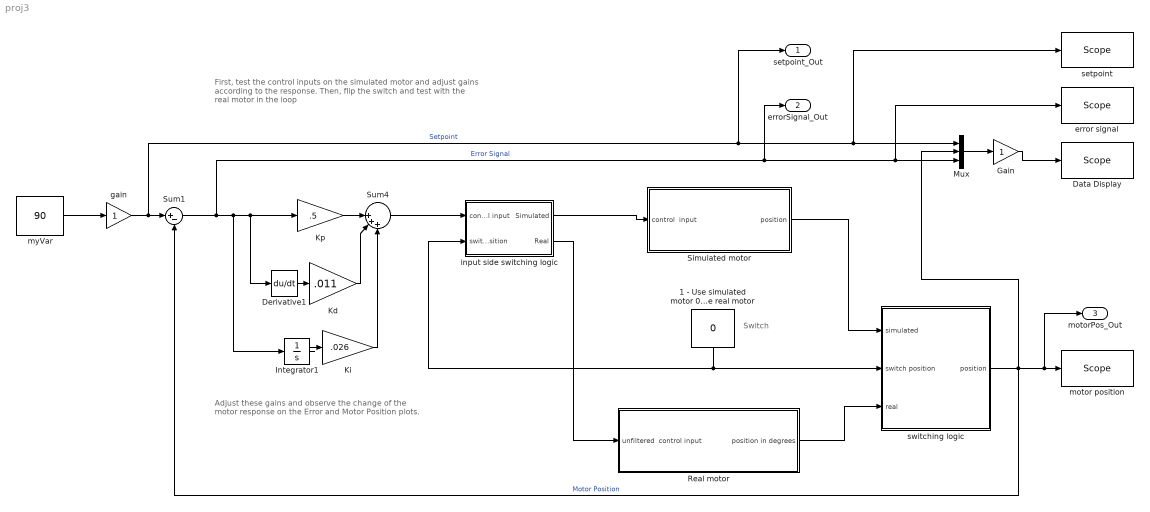
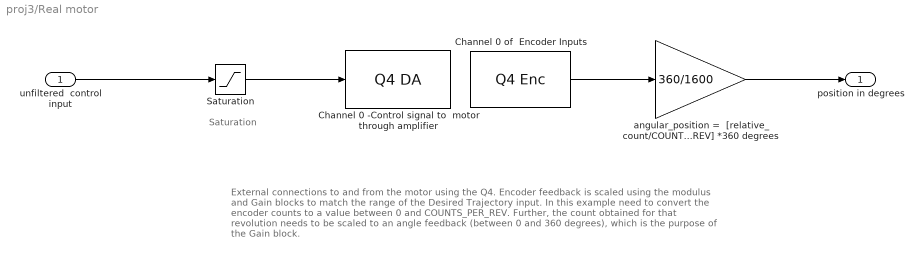
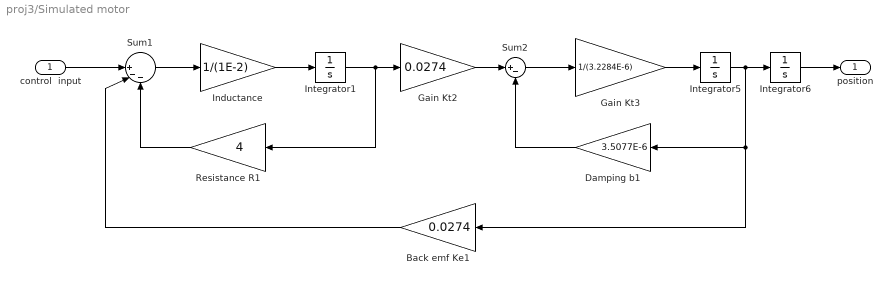
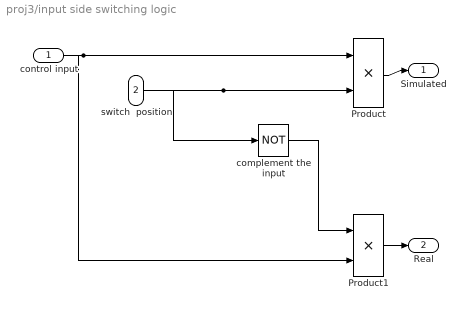
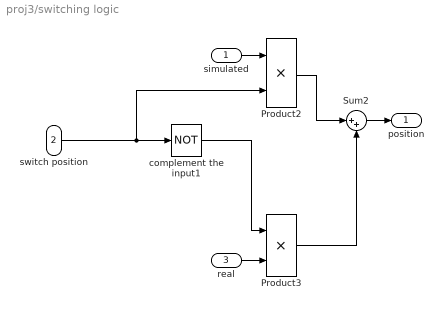
/*
 * proj3.c
 *
 * Academic Student License -- for use by students to meet course
 * requirements and perform academic research at degree granting
 * institutions only.  Not for government, commercial, or other
 * organizational use.
 *
 * Code generation for model "proj3".
 *
 * Model version              : 1.93
 * Simulink Coder version : 8.13 (R2017b) 24-Jul-2017
 * C source code generated on : Wed Oct 17 16:12:25 2018
 *
 * Target selection: slrt.tlc
 * Note: GRT includes extra infrastructure and instrumentation for prototyping
 * Embedded hardware selection: Generic->32-bit x86 compatible
 * Code generation objectives: Unspecified
 * Validation result: Not run
 */

#include "rt_logging_mmi.h"
#include "proj3_capi.h"
#include "proj3.h"
#include "proj3_private.h"

/* Block signals (auto storage) */
B_proj3_T proj3_B;

/* Continuous states */
X_proj3_T proj3_X;

/* Block states (auto storage) */
DW_proj3_T proj3_DW;

/* External outputs (root outports fed by signals with auto storage) */
ExtY_proj3_T proj3_Y;

/* Real-time model */
RT_MODEL_proj3_T proj3_M_;
RT_MODEL_proj3_T *const proj3_M = &proj3_M_;

/*
 * This function updates continuous states using the ODE3 fixed-step
 * solver algorithm
 */
static void rt_ertODEUpdateContinuousStates(RTWSolverInfo *si )
{
  /* Solver Matrices */
  static const real_T rt_ODE3_A[3] = {
    1.0/2.0, 3.0/4.0, 1.0
  };

  static const real_T rt_ODE3_B[3][3] = {
    { 1.0/2.0, 0.0, 0.0 },

    { 0.0, 3.0/4.0, 0.0 },

    { 2.0/9.0, 1.0/3.0, 4.0/9.0 }
  };

  time_T t = rtsiGetT(si);
  time_T tnew = rtsiGetSolverStopTime(si);
  time_T h = rtsiGetStepSize(si);
  real_T *x = rtsiGetContStates(si);
  ODE3_IntgData *id = (ODE3_IntgData *)rtsiGetSolverData(si);
  real_T *y = id->y;
  real_T *f0 = id->f[0];
  real_T *f1 = id->f[1];
  real_T *f2 = id->f[2];
  real_T hB[3];
  int_T i;
  int_T nXc = 4;
  rtsiSetSimTimeStep(si,MINOR_TIME_STEP);

  /* Save the state values at time t in y, we'll use x as ynew. */
  (void) memcpy(y, x,
                (uint_T)nXc*sizeof(real_T));

  /* Assumes that rtsiSetT and ModelOutputs are up-to-date */
  /* f0 = f(t,y) */
  rtsiSetdX(si, f0);
  proj3_derivatives();

  /* f(:,2) = feval(odefile, t + hA(1), y + f*hB(:,1), args(:)(*)); */
  hB[0] = h * rt_ODE3_B[0][0];
  for (i = 0; i < nXc; i++) {
    x[i] = y[i] + (f0[i]*hB[0]);
  }

  rtsiSetT(si, t + h*rt_ODE3_A[0]);
  rtsiSetdX(si, f1);
  proj3_output();
  proj3_derivatives();

  /* f(:,3) = feval(odefile, t + hA(2), y + f*hB(:,2), args(:)(*)); */
  for (i = 0; i <= 1; i++) {
    hB[i] = h * rt_ODE3_B[1][i];
  }

  for (i = 0; i < nXc; i++) {
    x[i] = y[i] + (f0[i]*hB[0] + f1[i]*hB[1]);
  }

  rtsiSetT(si, t + h*rt_ODE3_A[1]);
  rtsiSetdX(si, f2);
  proj3_output();
  proj3_derivatives();

  /* tnew = t + hA(3);
     ynew = y + f*hB(:,3); */
  for (i = 0; i <= 2; i++) {
    hB[i] = h * rt_ODE3_B[2][i];
  }

  for (i = 0; i < nXc; i++) {
    x[i] = y[i] + (f0[i]*hB[0] + f1[i]*hB[1] + f2[i]*hB[2]);
  }

  rtsiSetT(si, tnew);
  rtsiSetSimTimeStep(si,MAJOR_TIME_STEP);
}

/* Model output function */
void proj3_output(void)
{
  real_T *lastU;
  real_T lastTime;
  real_T u1;
  real_T u2;
  if (rtmIsMajorTimeStep(proj3_M)) {
    /* set solver stop time */
    if (!(proj3_M->Timing.clockTick0+1)) {
      rtsiSetSolverStopTime(&proj3_M->solverInfo, ((proj3_M->Timing.clockTickH0
        + 1) * proj3_M->Timing.stepSize0 * 4294967296.0));
    } else {
      rtsiSetSolverStopTime(&proj3_M->solverInfo, ((proj3_M->Timing.clockTick0 +
        1) * proj3_M->Timing.stepSize0 + proj3_M->Timing.clockTickH0 *
        proj3_M->Timing.stepSize0 * 4294967296.0));
    }
  }                                    /* end MajorTimeStep */

  /* Update absolute time of base rate at minor time step */
  if (rtmIsMinorTimeStep(proj3_M)) {
    proj3_M->Timing.t[0] = rtsiGetT(&proj3_M->solverInfo);
  }

  if (rtmIsMajorTimeStep(proj3_M)) {
    /* Gain: '<Root>/gain' incorporates:
     *  Constant: '<Root>/myVar'
     */
    proj3_B.Setpoint = proj3_P.gain_Gain * proj3_P.myVar_Value;

    /* Outport: '<Root>/setpoint_Out' */
    proj3_Y.setpoint_Out = proj3_B.Setpoint;

    /* Constant: '<Root>/1 - Use simulated motor 0 - Use real motor' */
    proj3_B.uUsesimulatedmotor0Userealmotor =
      proj3_P.uUsesimulatedmotor0Userealmotor;
  }

  /* Integrator: '<S3>/Integrator6' */
  proj3_B.Integrator6 = proj3_X.Integrator6_CSTATE;

  /* Product: '<S8>/Product2' */
  proj3_B.Product2 = proj3_B.Integrator6 *
    proj3_B.uUsesimulatedmotor0Userealmotor;
  if (rtmIsMajorTimeStep(proj3_M)) {
    /* Logic: '<S8>/complement the input1' */
    proj3_B.complementtheinput1 = !(proj3_B.uUsesimulatedmotor0Userealmotor !=
      0.0);

    /* S-Function (encquanserq8): '<S2>/Channel 0 of  Encoder Inputs ' */

    /* Level2 S-Function Block: '<S2>/Channel 0 of  Encoder Inputs ' (encquanserq8) */
    {
      SimStruct *rts = proj3_M->childSfunctions[0];
      sfcnOutputs(rts,1);
    }

    /* Gain: '<S2>/angular_position =  [relative_count//COUNTS_PER_REV] *360 degrees' */
    proj3_B.angular_positionrelative_countC =
      proj3_P.angular_positionrelative_countC * proj3_B.Channel0ofEncoderInputs;

    /* Product: '<S8>/Product3' */
    proj3_B.Product3 = (real_T)proj3_B.complementtheinput1 *
      proj3_B.angular_positionrelative_countC;
  }

  /* Sum: '<S8>/Sum2' */
  proj3_B.Sum2 = proj3_B.Product2 + proj3_B.Product3;

  /* Sum: '<Root>/Sum1' */
  proj3_B.ErrorSignal = proj3_B.Setpoint - proj3_B.Sum2;

  /* Outport: '<Root>/errorSignal_Out' */
  proj3_Y.errorSignal_Out = proj3_B.ErrorSignal;

  /* Outport: '<Root>/motorPos_Out' */
  proj3_Y.motorPos_Out = proj3_B.Sum2;

  /* S-Function (scblock): '<S1>/S-Function' */
  /* ok to acquire for <S1>/S-Function */
  proj3_DW.SFunction_IWORK.AcquireOK = 1;

  /* S-Function (scblock): '<S4>/S-Function' */
  /* ok to acquire for <S4>/S-Function */
  proj3_DW.SFunction_IWORK_i.AcquireOK = 1;

  /* S-Function (scblock): '<S6>/S-Function' */
  /* ok to acquire for <S6>/S-Function */
  proj3_DW.SFunction_IWORK_it.AcquireOK = 1;
  if (rtmIsMajorTimeStep(proj3_M)) {
    /* S-Function (scblock): '<S7>/S-Function' */
    /* ok to acquire for <S7>/S-Function */
    proj3_DW.SFunction_IWORK_n.AcquireOK = 1;
  }

  /* Derivative: '<Root>/Derivative1' */
  if ((proj3_DW.TimeStampA >= proj3_M->Timing.t[0]) && (proj3_DW.TimeStampB >=
       proj3_M->Timing.t[0])) {
    proj3_B.Derivative1 = 0.0;
  } else {
    lastTime = proj3_DW.TimeStampA;
    lastU = &proj3_DW.LastUAtTimeA;
    if (proj3_DW.TimeStampA < proj3_DW.TimeStampB) {
      if (proj3_DW.TimeStampB < proj3_M->Timing.t[0]) {
        lastTime = proj3_DW.TimeStampB;
        lastU = &proj3_DW.LastUAtTimeB;
      }
    } else {
      if (proj3_DW.TimeStampA >= proj3_M->Timing.t[0]) {
        lastTime = proj3_DW.TimeStampB;
        lastU = &proj3_DW.LastUAtTimeB;
      }
    }

    lastTime = proj3_M->Timing.t[0] - lastTime;
    proj3_B.Derivative1 = (proj3_B.ErrorSignal - *lastU) / lastTime;
  }

  /* End of Derivative: '<Root>/Derivative1' */

  /* Gain: '<Root>/Gain' */
  proj3_B.Gain[0] = proj3_P.Gain_Gain * proj3_B.Setpoint;
  proj3_B.Gain[1] = proj3_P.Gain_Gain * proj3_B.Sum2;
  proj3_B.Gain[2] = proj3_P.Gain_Gain * proj3_B.ErrorSignal;

  /* Integrator: '<Root>/Integrator1' */
  proj3_B.Integrator1 = proj3_X.Integrator1_CSTATE;

  /* Gain: '<Root>/Kd' */
  proj3_B.Kd = proj3_P.Kd_Gain * proj3_B.Derivative1;

  /* Gain: '<Root>/Ki' */
  proj3_B.Ki = proj3_P.Ki_Gain * proj3_B.Integrator1;

  /* Gain: '<Root>/Kp' */
  proj3_B.Kp = proj3_P.Kp_Gain * proj3_B.ErrorSignal;
  if (rtmIsMajorTimeStep(proj3_M)) {
    /* Logic: '<S5>/complement the input' */
    proj3_B.complementtheinput = !(proj3_B.uUsesimulatedmotor0Userealmotor !=
      0.0);
  }

  /* Sum: '<Root>/Sum4' */
  proj3_B.Sum4 = (proj3_B.Kp + proj3_B.Kd) + proj3_B.Ki;

  /* Product: '<S5>/Product1' */
  proj3_B.Product1 = (real_T)proj3_B.complementtheinput * proj3_B.Sum4;

  /* Saturate: '<S2>/Saturation' */
  lastTime = proj3_B.Product1;
  u1 = proj3_P.Saturation_LowerSat;
  u2 = proj3_P.Saturation_UpperSat;
  if (lastTime > u2) {
    proj3_B.Saturation = u2;
  } else if (lastTime < u1) {
    proj3_B.Saturation = u1;
  } else {
    proj3_B.Saturation = lastTime;
  }

  /* End of Saturate: '<S2>/Saturation' */
  if (rtmIsMajorTimeStep(proj3_M)) {
    /* S-Function (daquanserq8): '<S2>/Channel 0 -Control signal to  motor through amplifier ' */

    /* Level2 S-Function Block: '<S2>/Channel 0 -Control signal to  motor through amplifier ' (daquanserq8) */
    {
      SimStruct *rts = proj3_M->childSfunctions[1];
      sfcnOutputs(rts,1);
    }
  }

  /* Integrator: '<S3>/Integrator5' */
  proj3_B.Integrator5 = proj3_X.Integrator5_CSTATE;

  /* Gain: '<S3>/Back emf Ke1' */
  proj3_B.BackemfKe1 = proj3_P.BackemfKe1_Gain * proj3_B.Integrator5;

  /* Gain: '<S3>/Damping b1' */
  proj3_B.Dampingb1 = proj3_P.Dampingb1_Gain * proj3_B.Integrator5;

  /* Integrator: '<S3>/Integrator1' */
  proj3_B.Integrator1_h = proj3_X.Integrator1_CSTATE_i;

  /* Gain: '<S3>/Gain Kt2' */
  proj3_B.GainKt2 = proj3_P.GainKt2_Gain * proj3_B.Integrator1_h;

  /* Sum: '<S3>/Sum2' */
  proj3_B.Sum2_e = proj3_B.GainKt2 - proj3_B.Dampingb1;

  /* Gain: '<S3>/Gain Kt3' */
  proj3_B.GainKt3 = proj3_P.GainKt3_Gain * proj3_B.Sum2_e;

  /* Product: '<S5>/Product' */
  proj3_B.Product = proj3_B.Sum4 * proj3_B.uUsesimulatedmotor0Userealmotor;

  /* Gain: '<S3>/Resistance R1' */
  proj3_B.ResistanceR1 = proj3_P.ResistanceR1_Gain * proj3_B.Integrator1_h;

  /* Sum: '<S3>/Sum1' */
  proj3_B.Sum1 = (proj3_B.Product - proj3_B.BackemfKe1) - proj3_B.ResistanceR1;

  /* Gain: '<S3>/Inductance' */
  proj3_B.Inductance = proj3_P.Inductance_Gain * proj3_B.Sum1;
}

/* Model update function */
void proj3_update(void)
{
  real_T *lastU;

  /* Update for Derivative: '<Root>/Derivative1' */
  if (proj3_DW.TimeStampA == (rtInf)) {
    proj3_DW.TimeStampA = proj3_M->Timing.t[0];
    lastU = &proj3_DW.LastUAtTimeA;
  } else if (proj3_DW.TimeStampB == (rtInf)) {
    proj3_DW.TimeStampB = proj3_M->Timing.t[0];
    lastU = &proj3_DW.LastUAtTimeB;
  } else if (proj3_DW.TimeStampA < proj3_DW.TimeStampB) {
    proj3_DW.TimeStampA = proj3_M->Timing.t[0];
    lastU = &proj3_DW.LastUAtTimeA;
  } else {
    proj3_DW.TimeStampB = proj3_M->Timing.t[0];
    lastU = &proj3_DW.LastUAtTimeB;
  }

  *lastU = proj3_B.ErrorSignal;

  /* End of Update for Derivative: '<Root>/Derivative1' */
  if (rtmIsMajorTimeStep(proj3_M)) {
    rt_ertODEUpdateContinuousStates(&proj3_M->solverInfo);
  }

  /* Update absolute time for base rate */
  /* The "clockTick0" counts the number of times the code of this task has
   * been executed. The absolute time is the multiplication of "clockTick0"
   * and "Timing.stepSize0". Size of "clockTick0" ensures timer will not
   * overflow during the application lifespan selected.
   * Timer of this task consists of two 32 bit unsigned integers.
   * The two integers represent the low bits Timing.clockTick0 and the high bits
   * Timing.clockTickH0. When the low bit overflows to 0, the high bits increment.
   */
  if (!(++proj3_M->Timing.clockTick0)) {
    ++proj3_M->Timing.clockTickH0;
  }

  proj3_M->Timing.t[0] = rtsiGetSolverStopTime(&proj3_M->solverInfo);

  {
    /* Update absolute timer for sample time: [0.001s, 0.0s] */
    /* The "clockTick1" counts the number of times the code of this task has
     * been executed. The absolute time is the multiplication of "clockTick1"
     * and "Timing.stepSize1". Size of "clockTick1" ensures timer will not
     * overflow during the application lifespan selected.
     * Timer of this task consists of two 32 bit unsigned integers.
     * The two integers represent the low bits Timing.clockTick1 and the high bits
     * Timing.clockTickH1. When the low bit overflows to 0, the high bits increment.
     */
    if (!(++proj3_M->Timing.clockTick1)) {
      ++proj3_M->Timing.clockTickH1;
    }

    proj3_M->Timing.t[1] = proj3_M->Timing.clockTick1 *
      proj3_M->Timing.stepSize1 + proj3_M->Timing.clockTickH1 *
      proj3_M->Timing.stepSize1 * 4294967296.0;
  }
}
